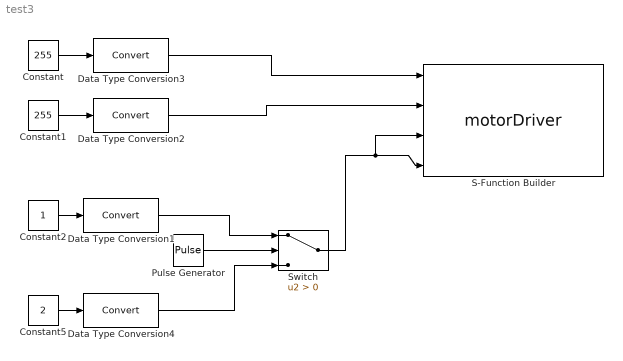
/*
 * Academic License - for use in teaching, academic research, and meeting
 * course requirements at degree granting institutions only.  Not for
 * government, commercial, or other organizational use.
 *
 * File: test3.c
 *
 * Code generated for Simulink model 'test3'.
 *
 * Model version                  : 1.8
 * Simulink Coder version         : 8.10 (R2016a) 10-Feb-2016
 * C/C++ source code generated on : Wed Dec 21 15:59:48 2016
 *
 * Target selection: ert.tlc
 * Embedded hardware selection: Atmel->AVR
 * Code generation objectives: Unspecified
 * Validation result: Not run
 */

#include "test3.h"
#include "test3_private.h"

/* Block signals (auto storage) */
B_test3_T test3_B;

/* Block states (auto storage) */
DW_test3_T test3_DW;

/* Real-time model */
RT_MODEL_test3_T test3_M_;
RT_MODEL_test3_T *const test3_M = &test3_M_;

/* Model step function */
void test3_step(void)
{
  real_T rtb_PulseGenerator;

  /* DataTypeConversion: '<Root>/Data Type Conversion3' incorporates:
   *  Constant: '<Root>/Constant'
   */
  rtb_PulseGenerator = floor(test3_P.Constant_Value);
  if (rtIsNaN(rtb_PulseGenerator) || rtIsInf(rtb_PulseGenerator)) {
    rtb_PulseGenerator = 0.0;
  } else {
    rtb_PulseGenerator = fmod(rtb_PulseGenerator, 256.0);
  }

  test3_B.DataTypeConversion3 = (int8_T)(rtb_PulseGenerator < 0.0 ? (int16_T)
    (int8_T)-(int8_T)(uint8_T)-rtb_PulseGenerator : (int16_T)(int8_T)(uint8_T)
    rtb_PulseGenerator);

  /* End of DataTypeConversion: '<Root>/Data Type Conversion3' */

  /* DataTypeConversion: '<Root>/Data Type Conversion2' incorporates:
   *  Constant: '<Root>/Constant1'
   */
  rtb_PulseGenerator = floor(test3_P.Constant1_Value);
  if (rtIsNaN(rtb_PulseGenerator) || rtIsInf(rtb_PulseGenerator)) {
    rtb_PulseGenerator = 0.0;
  } else {
    rtb_PulseGenerator = fmod(rtb_PulseGenerator, 256.0);
  }

  test3_B.DataTypeConversion2 = (int8_T)(rtb_PulseGenerator < 0.0 ? (int16_T)
    (int8_T)-(int8_T)(uint8_T)-rtb_PulseGenerator : (int16_T)(int8_T)(uint8_T)
    rtb_PulseGenerator);

  /* End of DataTypeConversion: '<Root>/Data Type Conversion2' */

  /* DiscretePulseGenerator: '<Root>/Pulse Generator' */
  rtb_PulseGenerator = (test3_DW.clockTickCounter < test3_P.PulseGenerator_Duty)
    && (test3_DW.clockTickCounter >= 0L) ? test3_P.PulseGenerator_Amp : 0.0;
  if (test3_DW.clockTickCounter >= test3_P.PulseGenerator_Period - 1.0) {
    test3_DW.clockTickCounter = 0L;
  } else {
    test3_DW.clockTickCounter++;
  }

  /* End of DiscretePulseGenerator: '<Root>/Pulse Generator' */

  /* Switch: '<Root>/Switch' incorporates:
   *  DataTypeConversion: '<Root>/Data Type Conversion1'
   *  DataTypeConversion: '<Root>/Data Type Conversion4'
   */
  if (rtb_PulseGenerator > test3_P.Switch_Threshold) {
    /* DataTypeConversion: '<Root>/Data Type Conversion1' incorporates:
     *  Constant: '<Root>/Constant2'
     */
    rtb_PulseGenerator = floor(test3_P.Constant2_Value);
    if (rtIsNaN(rtb_PulseGenerator) || rtIsInf(rtb_PulseGenerator)) {
      rtb_PulseGenerator = 0.0;
    } else {
      rtb_PulseGenerator = fmod(rtb_PulseGenerator, 256.0);
    }

    test3_B.Switch = (int8_T)(rtb_PulseGenerator < 0.0 ? (int16_T)(int8_T)
      -(int8_T)(uint8_T)-rtb_PulseGenerator : (int16_T)(int8_T)(uint8_T)
      rtb_PulseGenerator);
  } else {
    /* DataTypeConversion: '<Root>/Data Type Conversion4' incorporates:
     *  Constant: '<Root>/Constant5'
     */
    rtb_PulseGenerator = floor(test3_P.Constant5_Value);
    if (rtIsNaN(rtb_PulseGenerator) || rtIsInf(rtb_PulseGenerator)) {
      rtb_PulseGenerator = 0.0;
    } else {
      rtb_PulseGenerator = fmod(rtb_PulseGenerator, 256.0);
    }

    test3_B.Switch = (int8_T)(rtb_PulseGenerator < 0.0 ? (int16_T)(int8_T)
      -(int8_T)(uint8_T)-rtb_PulseGenerator : (int16_T)(int8_T)(uint8_T)
      rtb_PulseGenerator);
  }

  /* End of Switch: '<Root>/Switch' */

  /* S-Function (motorDriver): '<Root>/S-Function Builder' */
  motorDriver_Outputs_wrapper(&test3_B.DataTypeConversion3,
    &test3_B.DataTypeConversion2, &test3_B.Switch, &test3_B.Switch,
    &test3_DW.SFunctionBuilder_DSTATE);

  /* S-Function "motorDriver_wrapper" Block: <Root>/S-Function Builder */
  motorDriver_Update_wrapper(&test3_B.DataTypeConversion3,
    &test3_B.DataTypeConversion2, &test3_B.Switch, &test3_B.Switch,
    &test3_DW.SFunctionBuilder_DSTATE);
}
